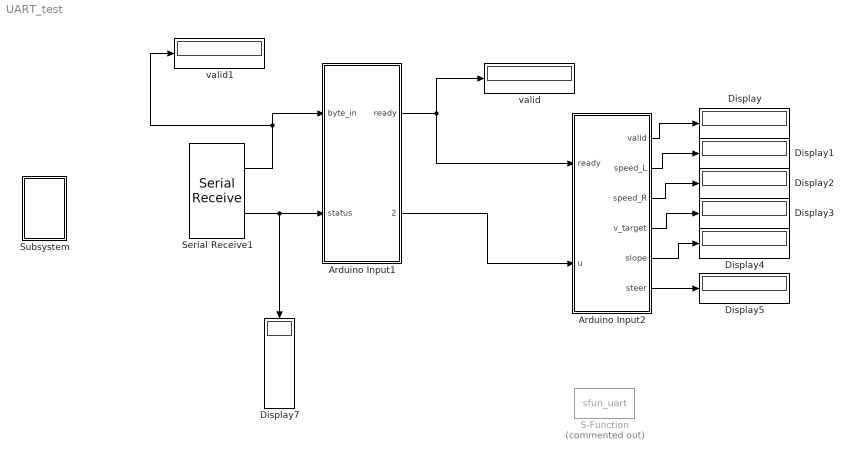
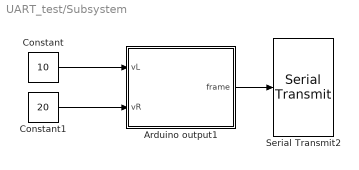
== matlab function UART_test/Arduino Input2 ==
function [valid, speed_L, speed_R, v_target, slope, steer] = parseUART_persistent(ready, u)
% UART 패킷 파서 (persistent 방식으로 이전 값 유지)
% u: [10x1] uint8, 패킷 데이터
% ready: 패킷 유효 신호

%#codegen

% 이전 출력값 저장용 persistent 변수
persistent p_valid p_speed_L p_speed_R p_v_target p_slope p_steer

% 초기화 (최초 실행 시)
if isempty(p_valid)
    p_valid = false;
    p_speed_L = 0.0;
    p_speed_R = 0.0;
    p_v_target = uint8(0);
    p_slope = uint8(0);
    p_steer = int8(0);
end

% 새로운 데이터가 들어왔을 경우만 업데이트
if ready == 1
        p_valid = true;
        p_speed_L = double(u(2));
        p_speed_R = double(u(3));
        p_v_target = u(4);
        p_slope = u(5);
        p_steer = int8(u(6));
end

% 항상 마지막 유효 출력 반환
valid     = p_valid;
speed_L   = p_speed_L;
speed_R   = p_speed_R;
v_target  = p_v_target;
slope     = p_slope;
steer     = p_steer;

== matlab function UART_test/Subsystem/Arduino output1 ==
function frame = makeFrame(vL, vR)
% 입력:
%   vL, vR : 좌/우 목표 속도 (실수, cm/s 단위)
% 출력:
%   frame : 7-byte UART 전송 프레임 (uint8 벡터)
    frame = zeros(5,1,'uint8');  % 7바이트 프레임

    % 2-3. 목표속도_L (정수 + 소수)
    frame(1) = uint8(floor(vL));                       % 정수부
    frame(2) = uint8(floor(mod(vL * 100, 100)));       % 소수부 (소수점 둘째 자리까지)

    % 4-5. 목표속도_R (정수 + 소수)
    frame(3) = uint8(floor(vR));                       % 정수부
    frame(4) = uint8(floor(mod(vR * 100, 100)));       % 소수부

    % 6. CRC: 256 - (sum of byte 1~5) % 256
    crc = mod(sum(double(frame(1:5))), 256);
    frame(5) = uint8(mod(256 - crc, 256));
    
end

== matlab function UART_test/Arduino Input1 ==
function [ready, data_out] = uart_parser(byte_in, status)
% UART 프레임 수신기 (Start Byte = 0xAA, Total = 10 bytes)
% 입력: byte_in - 1바이트씩 들어오는 uint8
% 입력: status - Serial Receive의 상태 (1이면 수신 성공)
% 출력: ready - 1이면 패킷 파싱 완료
% 출력: data_out - [1x10] uint8, 패킷 데이터

persistent buffer count collecting

if isempty(buffer)
    buffer = zeros(1, 8, 'uint8');
    count = 0;
    collecting = false;
end

ready = false;
data_out = zeros(1,8,'uint8');

if status == 1
    if ~collecting
        % 아직 수집 시작 전 → start byte 찾기
        if byte_in == hex2dec('AA')
            buffer(1) = byte_in;
            count = 1;
            collecting = true;
        end
    else
        % 수집 중
        count = count + 1;
        buffer(count) = byte_in;

        if count == 8
            data_out = buffer;
            ready = true;
            count = 0;
            collecting = false;
        end
    end
end

/*
 * Academic License - for use in teaching, academic research, and meeting
 * course requirements at degree granting institutions only.  Not for
 * government, commercial, or other organizational use.
 *
 * File: UART_test.c
 *
 * Code generated for Simulink model 'UART_test'.
 *
 * Model version                  : 1.87
 * Simulink Coder version         : 24.2 (R2024b) 21-Jun-2024
 * C/C++ source code generated on : Fri May 23 16:19:15 2025
 *
 * Target selection: ert.tlc
 * Embedded hardware selection: Atmel->AVR
 * Code generation objectives: Unspecified
 * Validation result: Not run
 */

#include "UART_test.h"
#include "rtwtypes.h"
#include <stddef.h>
#include <math.h>
#include "UART_test_private.h"
#include "rt_nonfinite.h"

/* Block signals (default storage) */
B_UART_test_T UART_test_B;

/* Block states (default storage) */
DW_UART_test_T UART_test_DW;

/* Real-time model */
static RT_MODEL_UART_test_T UART_test_M_;
RT_MODEL_UART_test_T *const UART_test_M = &UART_test_M_;

/* Forward declaration for local functions */
static real_T UART_test_mod(real_T x);
static real_T UART_test_mod_f(real_T x);
static void rate_monotonic_scheduler(void);

/*
 * Set which subrates need to run this base step (base rate always runs).
 * This function must be called prior to calling the model step function
 * in order to remember which rates need to run this base step.  The
 * buffering of events allows for overlapping preemption.
 */
void UART_test_SetEventsForThisBaseStep(boolean_T *eventFlags)
{
  /* Task runs when its counter is zero, computed via rtmStepTask macro */
  eventFlags[1] = ((boolean_T)rtmStepTask(UART_test_M, 1));
}

/*
 *         This function updates active task flag for each subrate
 *         and rate transition flags for tasks that exchange data.
 *         The function assumes rate-monotonic multitasking scheduler.
 *         The function must be called at model base rate so that
 *         the generated code self-manages all its subrates and rate
 *         transition flags.
 */
static void rate_monotonic_scheduler(void)
{
  /* Compute which subrates run during the next base time step.  Subrates
   * are an integer multiple of the base rate counter.  Therefore, the subtask
   * counter is reset when it reaches its limit (zero means run).
   */
  (UART_test_M->Timing.TaskCounters.TID[1])++;
  if ((UART_test_M->Timing.TaskCounters.TID[1]) > 99) {/* Sample time: [1.0s, 0.0s] */
    UART_test_M->Timing.TaskCounters.TID[1] = 0;
  }
}

/* Function for MATLAB Function: '<S3>/Arduino output1' */
static real_T UART_test_mod(real_T x)
{
  real_T r;
  if (rtIsNaN(x)) {
    r = (rtNaN);
  } else if (rtIsInf(x)) {
    r = (rtNaN);
  } else if (x == 0.0) {
    r = 0.0;
  } else {
    r = fmod(x, 100.0);
    if (r == 0.0) {
      r = 0.0;
    } else if (r < 0.0) {
      r += 100.0;
    }
  }

  return r;
}

/* Function for MATLAB Function: '<S3>/Arduino output1' */
static real_T UART_test_mod_f(real_T x)
{
  real_T r;
  if (rtIsNaN(x)) {
    r = (rtNaN);
  } else if (rtIsInf(x)) {
    r = (rtNaN);
  } else if (x == 0.0) {
    r = 0.0;
  } else {
    r = fmod(x, 256.0);
    if (r == 0.0) {
      r = 0.0;
    } else if (r < 0.0) {
      r += 256.0;
    }
  }

  return r;
}

real_T rt_roundd_snf(real_T u)
{
  real_T y;
  if (fabs(u) < 4.503599627370496E+15) {
    if (u >= 0.5) {
      y = floor(u + 0.5);
    } else if (u > -0.5) {
      y = u * 0.0;
    } else {
      y = ceil(u - 0.5);
    }
  } else {
    y = u;
  }

  return y;
}

/* Model step function for TID0 */
void UART_test_step0(void)             /* Sample time: [0.01s, 0.0s] */
{
  int16_T i;
  uint8_T data_out[8];
  uint8_T tmp;

  {                                    /* Sample time: [0.01s, 0.0s] */
    rate_monotonic_scheduler();
  }

  /* MATLABSystem: '<Root>/Serial Receive1' */
  MW_Serial_read(1, 1U, &UART_test_B.SerialReceive1_o1,
                 &UART_test_B.SerialReceive1_o2, NULL, 0.0, NULL, 0.0);

  /* MATLAB Function: '<Root>/Arduino Input1' */
  UART_test_B.ready = false;
  for (i = 0; i < 8; i++) {
    data_out[i] = 0U;
  }

  if (UART_test_B.SerialReceive1_o2 == 1) {
    if (!UART_test_DW.collecting) {
      if (UART_test_B.SerialReceive1_o1 == 170) {
        UART_test_DW.buffer[0] = UART_test_B.SerialReceive1_o1;
        UART_test_DW.count = 1.0;
        UART_test_DW.collecting = true;
      }
    } else {
      UART_test_DW.count++;
      UART_test_DW.buffer[(int16_T)UART_test_DW.count - 1] =
        UART_test_B.SerialReceive1_o1;
      if (UART_test_DW.count == 8.0) {
        for (i = 0; i < 8; i++) {
          data_out[i] = UART_test_DW.buffer[i];
        }

        UART_test_B.ready = true;
        UART_test_DW.count = 0.0;
        UART_test_DW.collecting = false;
      }
    }
  }

  /* End of MATLAB Function: '<Root>/Arduino Input1' */

  /* MATLAB Function: '<Root>/Arduino Input2' */
  if (UART_test_B.ready) {
    UART_test_DW.p_valid = true;
    UART_test_DW.p_speed_L = data_out[1];
    UART_test_DW.p_speed_R = data_out[2];
    UART_test_DW.p_v_target = data_out[3];
    UART_test_DW.p_slope = data_out[4];
    tmp = data_out[5];
    if (data_out[5] > 127) {
      tmp = 127U;
    }

    UART_test_DW.p_steer = (int8_T)tmp;
  }

  UART_test_B.valid = UART_test_DW.p_valid;
  UART_test_B.speed_L = UART_test_DW.p_speed_L;
  UART_test_B.speed_R = UART_test_DW.p_speed_R;
  UART_test_B.v_target = UART_test_DW.p_v_target;
  UART_test_B.slope = UART_test_DW.p_slope;
  UART_test_B.steer = UART_test_DW.p_steer;

  /* End of MATLAB Function: '<Root>/Arduino Input2' */

  /* Update absolute time */
  /* The "clockTick0" counts the number of times the code of this task has
   * been executed. The absolute time is the multiplication of "clockTick0"
   * and "Timing.stepSize0". Size of "clockTick0" ensures timer will not
   * overflow during the application lifespan selected.
   */
  UART_test_M->Timing.taskTime0 =
    ((time_T)(++UART_test_M->Timing.clockTick0)) * UART_test_M->Timing.stepSize0;
}

/* Model step function for TID1 */
void UART_test_step1(void)             /* Sample time: [1.0s, 0.0s] */
{
  real_T tmp;
  real_T tmp_0;
  real_T tmp_1;
  uint8_T frame[5];
  uint8_T varargin_10;
  uint8_T varargin_9;

  /* Outputs for Atomic SubSystem: '<Root>/Subsystem' */
  /* MATLAB Function: '<S3>/Arduino output1' incorporates:
   *  Constant: '<S3>/Constant'
   *  Constant: '<S3>/Constant1'
   */
  tmp_1 = floor(UART_test_P.Constant_Value);
  if (tmp_1 < 256.0) {
    if (tmp_1 >= 0.0) {
      frame[0] = (uint8_T)tmp_1;
    } else {
      frame[0] = 0U;
    }
  } else {
    frame[0] = MAX_uint8_T;
  }

  tmp_0 = floor(UART_test_mod(UART_test_P.Constant_Value * 100.0));
  if (tmp_0 < 256.0) {
    if (tmp_0 >= 0.0) {
      frame[1] = (uint8_T)tmp_0;
    } else {
      frame[1] = 0U;
    }
  } else {
    frame[1] = MAX_uint8_T;
  }

  tmp_0 = floor(UART_test_P.Constant1_Value);
  if (tmp_0 < 256.0) {
    if (tmp_0 >= 0.0) {
      frame[2] = (uint8_T)tmp_0;
    } else {
      frame[2] = 0U;
    }
  } else {
    frame[2] = MAX_uint8_T;
  }

  tmp = floor(UART_test_mod(UART_test_P.Constant1_Value * 100.0));
  if (tmp < 256.0) {
    if (tmp >= 0.0) {
      frame[3] = (uint8_T)tmp;
    } else {
      frame[3] = 0U;
    }
  } else {
    frame[3] = MAX_uint8_T;
  }

  if (tmp_1 < 256.0) {
    if (tmp_1 >= 0.0) {
      varargin_9 = (uint8_T)tmp_1;
    } else {
      varargin_9 = 0U;
    }
  } else {
    varargin_9 = MAX_uint8_T;
  }

  if (tmp_0 < 256.0) {
    if (tmp_0 >= 0.0) {
      varargin_10 = (uint8_T)tmp_0;
    } else {
      varargin_10 = 0U;
    }
  } else {
    varargin_10 = MAX_uint8_T;
  }

  tmp_1 = rt_roundd_snf(UART_test_mod_f(256.0 - UART_test_mod_f((real_T)
    (((varargin_9 + frame[1]) + varargin_10) + frame[3]))));
  if (tmp_1 < 256.0) {
    if (tmp_1 >= 0.0) {
      frame[4] = (uint8_T)tmp_1;
    } else {
      frame[4] = 0U;
    }
  } else {
    frame[4] = MAX_uint8_T;
  }

  /* End of MATLAB Function: '<S3>/Arduino output1' */

  /* MATLABSystem: '<S3>/Serial Transmit2' */
  varargin_9 = 85U;
  varargin_10 = 170U;
  MW_Serial_write(UART_test_DW.obj.port, &frame[0], 5.0,
                  UART_test_DW.obj.dataSizeInBytes,
                  UART_test_DW.obj.sendModeEnum, UART_test_DW.obj.dataType,
                  UART_test_DW.obj.sendFormatEnum, 2.0, '\x00', &varargin_9, 1.0,
                  &varargin_10, 1.0);

  /* End of Outputs for SubSystem: '<Root>/Subsystem' */

  /* Update absolute time */
  /* The "clockTick1" counts the number of times the code of this task has
   * been executed. The resolution of this integer timer is 1.0, which is the step size
   * of the task. Size of "clockTick1" ensures timer will not overflow during the
   * application lifespan selected.
   */
  UART_test_M->Timing.clockTick1++;
}
